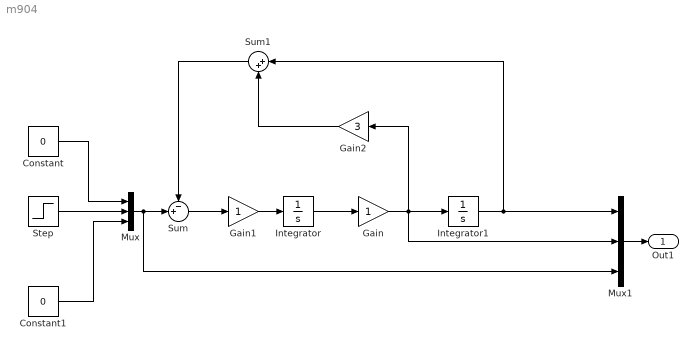
/*
 * m904.c
 * 
 * Real-Time Workshop code generation for Simulink model "m904.mdl".
 *
 * Model Version              : 1.8
 * Real-Time Workshop version : 6.1  (R14SP1)  05-Sep-2004
 * C source code generated on : Mon Apr 11 10:30:00 2005
 */

#include "m904.h"
#include "m904_private.h"

/* Block signals (auto storage) */
BlockIO_m904 m904_B;

/* Continuous states */
ContinuousStates_m904 m904_X;

/* Solver Matrices */

/* A and B matrices used by ODE3 fixed-step solver */
static const real_T rt_ODE3_A[3] = {
  1.0/2.0, 3.0/4.0, 1.0
};
static const real_T rt_ODE3_B[3][3] = {
  { 1.0/2.0, 0.0, 0.0 },
  { 0.0, 3.0/4.0, 0.0 },
  { 2.0/9.0, 1.0/3.0, 4.0/9.0 }
};

/* Block states (auto storage) */
D_Work_m904 m904_DWork;

/* Real-time model */
rtModel_m904 m904_M_;
rtModel_m904 *m904_M = &m904_M_;

/* This function implements a singletasking scheduler for a system with 2
 * rates.  This function is called by the generated step function, hence the
 * generated code self-manages all its subrates.
 */
static void rate_scheduler(void)
{

  /* Compute which subrates run during the next base time step.  Subrates
   * are an integer multiple of the base rate counter.  Therefore, the subtask
   * counter is reset when it reaches its limit (zero means run).
   */
}

/* This function updates continuous states using the ODE3 fixed-step
 * solver algorithm
 */
static void rt_ertODEUpdateContinuousStates(RTWSolverInfo *si , int_T tid)
{
  time_T t = rtsiGetT(si);
  time_T tnew = rtsiGetSolverStopTime(si);
  time_T h = rtsiGetStepSize(si);
  real_T *x = rtsiGetContStates(si);
  ODE3_IntgData *id = rtsiGetSolverData(si);
  real_T *y = id->y;
  real_T *f0 = id->f[0];
  real_T *f1 = id->f[1];
  real_T *f2 = id->f[2];
  real_T hB[3];
  int_T i;

  int_T nXc = 6;

  rtsiSetSimTimeStep(si,MINOR_TIME_STEP);

  /* Save the state values at time t in y, we'll use x as ynew. */
  (void)memcpy(y, x, nXc*sizeof(real_T));

  /* Assumes that rtsiSetT and ModelOutputs are up-to-date */
  /* f0 = f(t,y) */
  rtsiSetdX(si, f0);
  m904_derivatives();

  /* f(:,2) = feval(odefile, t + hA(1), y + f*hB(:,1), args(:)(*)); */
  hB[0] = h * rt_ODE3_B[0][0];
  for (i = 0; i < nXc; i++) {
    x[i] = y[i] + (f0[i]*hB[0]);
  }
  rtsiSetT(si, t + h*rt_ODE3_A[0]);
  rtsiSetdX(si, f1);
  m904_output(0);
  m904_derivatives();

  /* f(:,3) = feval(odefile, t + hA(2), y + f*hB(:,2), args(:)(*)); */
  for (i = 0; i <= 1; i++) hB[i] = h * rt_ODE3_B[1][i];
  for (i = 0; i < nXc; i++) {
    x[i] = y[i] + (f0[i]*hB[0] + f1[i]*hB[1]);
  }
  rtsiSetT(si, t + h*rt_ODE3_A[1]);
  rtsiSetdX(si, f2);
  m904_output(0);
  m904_derivatives();

  /* tnew = t + hA(3);
     ynew = y + f*hB(:,3); */
  for (i = 0; i <= 2; i++) hB[i] = h * rt_ODE3_B[2][i];
  for (i = 0; i < nXc; i++) {
    x[i] = y[i] + (f0[i]*hB[0] + f1[i]*hB[1] + f2[i]*hB[2]);
  }
  rtsiSetT(si, tnew);

  rtsiSetSimTimeStep(si,MAJOR_TIME_STEP);
}

/* Model output function */
void m904_output(int_T tid)
{

  /* local block i/o variables */

  real_T rtb_Integrator[3];

  /* Update absolute time of base rate at minor time step */
  if (rtmIsMinorTimeStep(m904_M)) {
    m904_M->Timing.t[0] = rtsiGetT(&m904_M->solverInfo);
  }

  if (rtmIsMajorTimeStep(m904_M)) {
    /* set solver stop time */
    rtsiSetSolverStopTime(&m904_M->solverInfo,
     ((m904_M->Timing.clockTick0+1)*m904_M->Timing.stepSize0));
  }                                     /* end MajorTimeStep */

  /* Integrator: '<Root>/Integrator1' */
  m904_B.Integrator1[0] = m904_X.Integrator1_CSTATE[0];
  m904_B.Integrator1[1] = m904_X.Integrator1_CSTATE[1];
  m904_B.Integrator1[2] = m904_X.Integrator1_CSTATE[2];

  /* Integrator: '<Root>/Integrator' */
  rtb_Integrator[0] = m904_X.Integrator_CSTATE[0];
  rtb_Integrator[1] = m904_X.Integrator_CSTATE[1];
  rtb_Integrator[2] = m904_X.Integrator_CSTATE[2];

  /* Gain: '<Root>/Gain' */
  m904_B.Gain[0] = rtb_Integrator[0] * m904_P.Gain_Gain;
  m904_B.Gain[1] = rtb_Integrator[1] * m904_P.Gain_Gain;
  m904_B.Gain[2] = rtb_Integrator[2] * m904_P.Gain_Gain;

  /* Step: '<Root>/Step' */
  {
    real_T currentTime = m904_M->Timing.t[0];
    if (currentTime < m904_P.Step_Time) {
      m904_B.Step = m904_P.Step_Y0;
    } else {
      m904_B.Step = m904_P.Step_YFinal;
    }
  }

  /* Gain: '<Root>/Gain1' incorporates:
   *  Gain: '<Root>/Gain2'
   *  Sum: '<Root>/Sum1'
   *  Sum: '<Root>/Sum'
   *  Constant: '<Root>/Constant1'
   *  Constant: '<Root>/Constant'
   */
  m904_B.Gain1[0] = (m904_P.Constant_Value - (m904_B.Integrator1[0] +
    m904_B.Gain[0] * m904_P.Gain2_Gain)) * m904_P.Gain1_Gain;
  m904_B.Gain1[1] = (m904_B.Step - (m904_B.Integrator1[1] + m904_B.Gain[1] *
    m904_P.Gain2_Gain)) * m904_P.Gain1_Gain;
  m904_B.Gain1[2] = (m904_P.Constant1_Value - (m904_B.Integrator1[2] +
    m904_B.Gain[2] * m904_P.Gain2_Gain)) * m904_P.Gain1_Gain;
}

/* Model update function */
void m904_update(int_T tid)
{

  if (rtmIsMajorTimeStep(m904_M)) {
    rt_ertODEUpdateContinuousStates(&m904_M->solverInfo, 0);
  }

  /* Update absolute time for base rate */

  if(!(++m904_M->Timing.clockTick0)) ++m904_M->Timing.clockTickH0;
  m904_M->Timing.t[0] = m904_M->Timing.clockTick0 * m904_M->Timing.stepSize0 +
    m904_M->Timing.clockTickH0 * m904_M->Timing.stepSize0 * 4294967296.0;

  if (rtmIsMajorTimeStep(m904_M) &&
   m904_M->Timing.TaskCounters.TID[1] == 0) {
    /* Update absolute timer for sample time: [0.01s, 0.0s] */

    if(!(++m904_M->Timing.clockTick1)) ++m904_M->Timing.clockTickH1;
    m904_M->Timing.t[1] = m904_M->Timing.clockTick1 * m904_M->Timing.stepSize1 +
      m904_M->Timing.clockTickH1 * m904_M->Timing.stepSize1 * 4294967296.0;
  }

  rate_scheduler();
}
